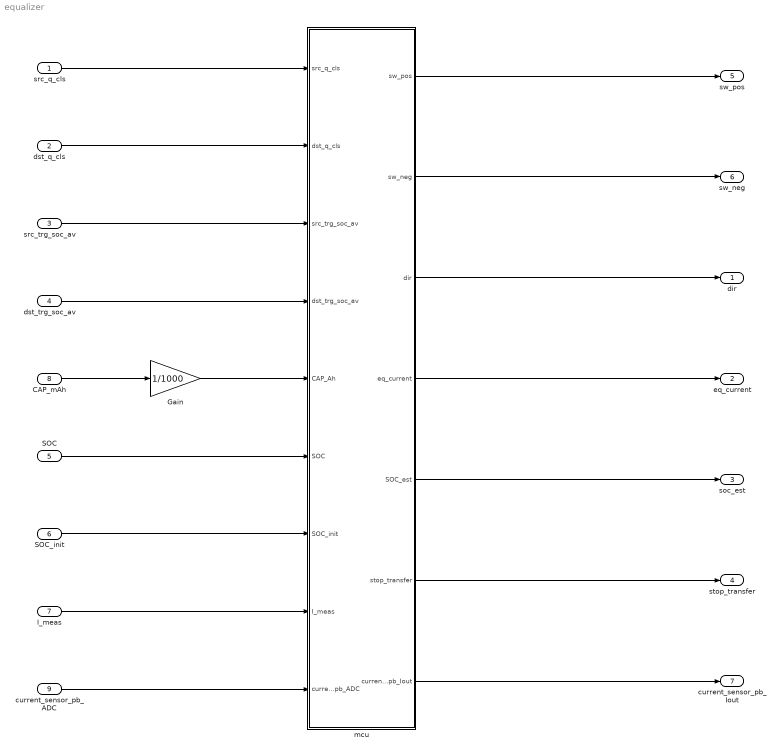
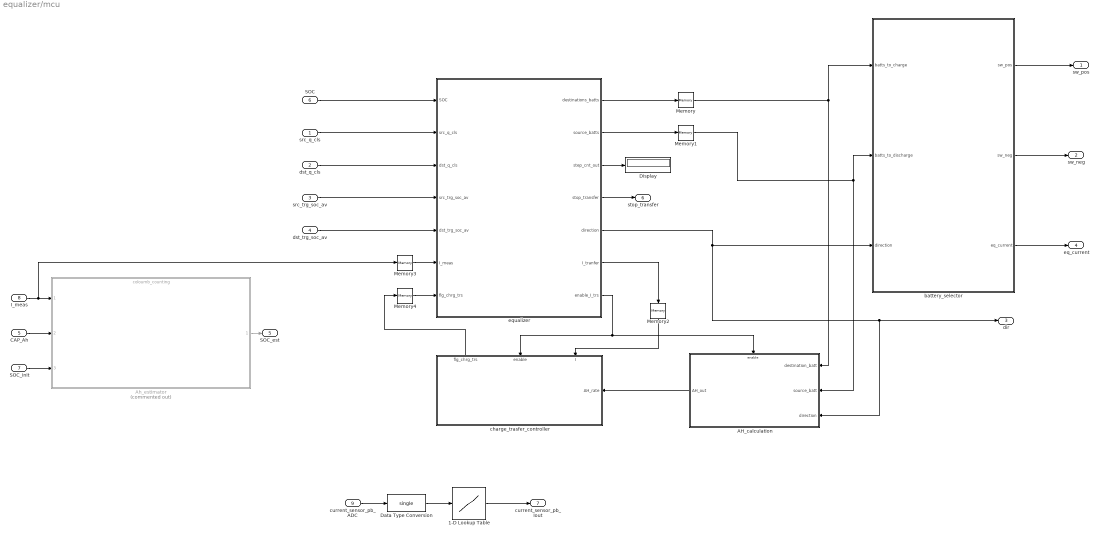
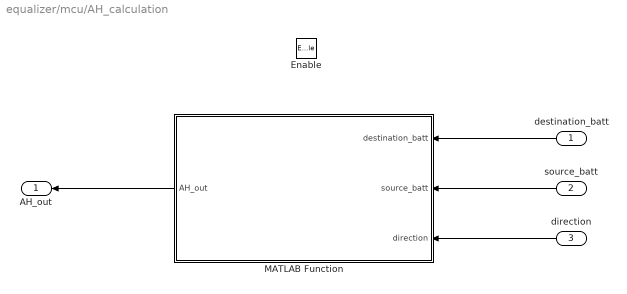
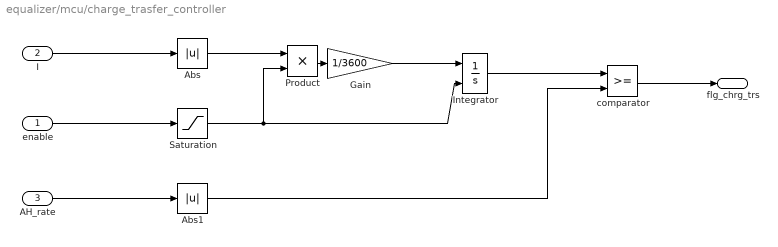
== matlab function equalizer/mcu/battery_selector ==
function [sw_pos, sw_neg, eq_current] = battery_selector(batts_to_charge, batts_to_discharge, direction)
    sw_pos = uint8(0);
    sw_neg = uint8(0);
    eq_current = 0;
    eq_current_tmp = 0;
% to prevent invalid switch selection
if ( batts_to_charge(1, 1) <= batts_to_charge(1, 2) && ...
     batts_to_discharge(1, 1) <= batts_to_discharge(1, 2))
    
    % charge the capacitor using batteries
    if(direction == 0)
        sw_pos = uint8(batts_to_discharge(1, 1));
        sw_neg = uint8(batts_to_discharge(1, 2));
        eq_current_tmp = 2;        
    % charge the battery using capacitor
    elseif(direction == 1)
        sw_pos = uint8(batts_to_charge(1, 1));
        sw_neg = uint8(batts_to_charge(1, 2));
        eq_current_tmp = 2;
    else
        sw_pos = uint8(0);
        sw_neg = uint8(0);
    end


    eq_current = eq_current_tmp;

end


end

== matlab function equalizer/mcu/equalizer ==
function [destinations_batts, source_batts, step_cnt_out, stop_transfer, direction, I_tranfer, enable_I_trs] = ...
    battery_selector ...
    (SOC, src_q_cls, dst_q_cls, src_trg_soc_av, dst_trg_soc_av, I_meas, flg_chrg_trs)


I_tranfer  = 0;
stop_transfer  = 0;
source_batts = [0 0];
destinations_batts = [0 0];
dst_trg_soc_av_tmp = dst_trg_soc_av;
src_trg_soc_av_tmp = src_trg_soc_av;

%dst_trg_soc_av_tmp(dst_trg_soc_av == 0) = Inf;
% src_trg_soc_av_tmp(src_trg_soc_av == 0) = Inf;
% the number of steps to equlalize the battery pack
step = length(src_q_cls);

persistent step_cnt;
persistent I_cells_source;
persistent I_cells_destination;
persistent dir;
persistent enable;



if isempty(step_cnt)
    step_cnt = 1;
    assert(1, 'Simulation terminated because x >= 10')

end

if isempty(I_cells_source)
    I_cells_source = 0;
end
if isempty(I_cells_destination)
    I_cells_destination = 0;
end
if isempty(dir)
    dir = int8(-1);
end
if isempty(enable)
    enable = 0;
end



soc = SOC';
if src_q_cls(1, :) > 0


    source_batts = src_q_cls(1, :);
    I_cells_source = I_meas(source_batts(1, 1));       % source cells current
    destinations_batts = dst_q_cls(1, :);
    I_cells_destination = I_meas(destinations_batts(1, 1));  % destication cells current



    if(dir == -1 && flg_chrg_trs == 0) % dischaege source if in the begining of charge transfering
        I_tranfer = I_cells_source;
        enable = 1; % start counting coulombs
        dir = int8(0); 
    end
    if(dir == 0)
        I_tranfer = I_cells_source;
    end

    if(dir == 0 && flg_chrg_trs == 1 && enable == 1) % reset the flag
        enable = 0;
    end

    if(dir == 0 && flg_chrg_trs == 0 && enable == 0) % charge the destination if the prevoius charge transfer terminated
        I_tranfer = I_cells_destination;
        enable = 1;
        dir = int8(1);
    end
    if(dir == 1)
        I_tranfer = I_cells_destination;
    end

    if(dir == 1 && flg_chrg_trs == 1 && enable == 1) % reset the flag
        enable = 0;
    end

    if(dir == 1 && flg_chrg_trs == 0 && enable == 0) % charge transfer terminated
        dir = int8(-1);
    end
    
    sm = mean(soc(src_q_cls(1, 1):src_q_cls(1, 2)));
    dm = mean(soc(dst_q_cls(1, 1):dst_q_cls(1, 2)));
    if(sm <= src_trg_soc_av_tmp(1) || dm >= dst_trg_soc_av_tmp(1)) && dir == -1
        stop_transfer = 1;
    end
else
    direction = int8(0);
    I_cells_source = 0;
    I_cells_destination = 0;
    dir = int8(-1);
    stop_transfer  = 1;
    enable = 0;
end
direction = int8(dir);
enable_I_trs = enable;


step_cnt_out = step_cnt;

end

== matlab function equalizer/mcu/AH_calculation/MATLAB Function ==
function AH_out = fcn(destination_batt, source_batt, direction)
AH_base = 0.001;
AH_coeff = 1;
AH_out = 0;

source_batt_number = source_batt(1, 2) - source_batt(1, 1) + 1;
destination_batt_number = destination_batt(1, 2) - destination_batt(1, 1) + 1;

if (source_batt_number > destination_batt_number)
    if direction == 0
        AH_coeff = destination_batt_number / source_batt_number;
    else
        AH_coeff = 1; 
    end
elseif source_batt_number < destination_batt_number
     if direction == 1
        AH_coeff = source_batt_number / destination_batt_number;
    else
        AH_coeff = 1; 
    end
end

AH_out = AH_base * AH_coeff;

/*
 * File: equalizer.c
 *
 * Code generated for Simulink model 'equalizer'.
 *
 * Model version                  : 4.51
 * Simulink Coder version         : 23.2 (R2023b) 01-Aug-2023
 * C/C++ source code generated on : Thu Jul  4 12:09:58 2024
 *
 * Target selection: ert.tlc
 * Embedded hardware selection: STMicroelectronics->ST10/Super10
 * Code generation objectives: Unspecified
 * Validation result: Not run
 */

#include "equalizer.h"
#include "equalizer_private.h"
#include <math.h>
#include "rtwtypes.h"
#include "zero_crossing_types.h"

/* Block signals (default storage) */
B_equalizer_T equalizer_B;

/* Continuous states */
X_equalizer_T equalizer_X;

/* Disabled State Vector */
XDis_equalizer_T equalizer_XDis;

/* Block states (default storage) */
DW_equalizer_T equalizer_DW;

/* Previous zero-crossings (trigger) states */
PrevZCX_equalizer_T equalizer_PrevZCX;

/* External inputs (root inport signals with default storage) */
ExtU_equalizer_T equalizer_U;

/* External outputs (root outports fed by signals with default storage) */
ExtY_equalizer_T equalizer_Y;

/* Real-time model */
static RT_MODEL_equalizer_T equalizer_M_;
RT_MODEL_equalizer_T *const equalizer_M = &equalizer_M_;
real32_T look1_iflf_binlxpw(real32_T u0, const real32_T bp0[], const real32_T
    table[], uint32_T maxIndex)
{
    real32_T frac;
    real32_T yL_0d0;
    uint32_T iLeft;

    /* Column-major Lookup 1-D
       Search method: 'binary'
       Use previous index: 'off'
       Interpolation method: 'Linear point-slope'
       Extrapolation method: 'Linear'
       Use last breakpoint for index at or above upper limit: 'off'
       Remove protection against out-of-range input in generated code: 'off'
     */
    /* Prelookup - Index and Fraction
       Index Search method: 'binary'
       Extrapolation method: 'Linear'
       Use previous index: 'off'
       Use last breakpoint for index at or above upper limit: 'off'
       Remove protection against out-of-range input in generated code: 'off'
     */
    if (u0 <= bp0[0UL])
    {
        iLeft = 0UL;
        frac = (u0 - bp0[0UL]) / (bp0[1UL] - bp0[0UL]);
    }
    else if (u0 < bp0[maxIndex])
    {
        uint32_T bpIdx;
        uint32_T iRght;

        /* Binary Search */
        bpIdx = maxIndex >> 1UL;
        iLeft = 0UL;
        iRght = maxIndex;
        while (iRght - iLeft > 1UL)
        {
            if (u0 < bp0[bpIdx])
            {
                iRght = bpIdx;
            }
            else
            {
                iLeft = bpIdx;
            }

            bpIdx = (iRght + iLeft) >> 1UL;
        }

        frac = (u0 - bp0[iLeft]) / (bp0[iLeft + 1UL] - bp0[iLeft]);
    }
    else
    {
        iLeft = maxIndex - 1UL;
        frac = (u0 - bp0[maxIndex - 1UL]) / (bp0[maxIndex] - bp0[maxIndex - 1UL]);
    }

    /* Column-major Interpolation 1-D
       Interpolation method: 'Linear point-slope'
       Use last breakpoint for index at or above upper limit: 'off'
       Overflow mode: 'portable wrapping'
     */
    yL_0d0 = table[iLeft];
    return (table[iLeft + 1UL] - yL_0d0) * frac + yL_0d0;
}

/*
 * This function updates continuous states using the ODE3 fixed-step
 * solver algorithm
 */
static void rt_ertODEUpdateContinuousStates(RTWSolverInfo *si )
{
    /* Solver Matrices */
    static const real_T rt_ODE3_A[3] =
    {
        1.0/2.0, 3.0/4.0, 1.0
    };

    static const real_T rt_ODE3_B[3][3] =
    {
        {
            1.0/2.0, 0.0, 0.0
        },

        {
            0.0, 3.0/4.0, 0.0
        },

        {
            2.0/9.0, 1.0/3.0, 4.0/9.0
        }
    };

    time_T t = rtsiGetT(si);
    time_T tnew = rtsiGetSolverStopTime(si);
    time_T h = rtsiGetStepSize(si);
    real_T *x = rtsiGetContStates(si);
    ODE3_IntgData *id = (ODE3_IntgData *)rtsiGetSolverData(si);
    real_T *y = id->y;
    real_T *f0 = id->f[0];
    real_T *f1 = id->f[1];
    real_T *f2 = id->f[2];
    real_T hB[3];
    int_T i;
    int_T nXc = 1;
    rtsiSetSimTimeStep(si,MINOR_TIME_STEP);

    /* Save the state values at time t in y, we'll use x as ynew. */
    (void) memcpy(y, x,
                  (uint_T)nXc*sizeof(real_T));

    /* Assumes that rtsiSetT and ModelOutputs are up-to-date */
    /* f0 = f(t,y) */
    rtsiSetdX(si, f0);
    equalizer_derivatives();

    /* f(:,2) = feval(odefile, t + hA(1), y + f*hB(:,1), args(:)(*)); */
    hB[0] = h * rt_ODE3_B[0][0];
    for (i = 0; i < nXc; i++)
    {
        x[i] = y[i] + (f0[i]*hB[0]);
    }

    rtsiSetT(si, t + h*rt_ODE3_A[0]);
    rtsiSetdX(si, f1);
    equalizer_step();
    equalizer_derivatives();

    /* f(:,3) = feval(odefile, t + hA(2), y + f*hB(:,2), args(:)(*)); */
    for (i = 0; i <= 1; i++)
    {
        hB[i] = h * rt_ODE3_B[1][i];
    }

    for (i = 0; i < nXc; i++)
    {
        x[i] = y[i] + (f0[i]*hB[0] + f1[i]*hB[1]);
    }

    rtsiSetT(si, t + h*rt_ODE3_A[1]);
    rtsiSetdX(si, f2);
    equalizer_step();
    equalizer_derivatives();

    /* tnew = t + hA(3);
       ynew = y + f*hB(:,3); */
    for (i = 0; i <= 2; i++)
    {
        hB[i] = h * rt_ODE3_B[2][i];
    }

    for (i = 0; i < nXc; i++)
    {
        x[i] = y[i] + (f0[i]*hB[0] + f1[i]*hB[1] + f2[i]*hB[2]);
    }

    rtsiSetT(si, tnew);
    rtsiSetSimTimeStep(si,MAJOR_TIME_STEP);
}

real_T rt_roundd_snf(real_T u)
{
    real_T y;
    if (fabs(u) < 4.503599627370496E+15)
    {
        if (u >= 0.5)
        {
            y = floor(u + 0.5);
        }
        else if (u > -0.5)
        {
            y = u * 0.0;
        }
        else
        {
            y = ceil(u - 0.5);
        }
    }
    else
    {
        y = u;
    }

    return y;
}

/* Model step function */
void equalizer_step(void)
{
    if (rtmIsMajorTimeStep(equalizer_M))
    {
        /* set solver stop time */
        rtsiSetSolverStopTime(&equalizer_M->solverInfo,
                              ((equalizer_M->Timing.clockTick0+1)*
                               equalizer_M->Timing.stepSize0));
    }                                  /* end MajorTimeStep */

    /* Update absolute time of base rate at minor time step */
    if (rtmIsMinorTimeStep(equalizer_M))
    {
        equalizer_M->Timing.t[0] = rtsiGetT(&equalizer_M->solverInfo);
    }

    {
        real_T AH_coeff;
        real_T destination_batt_number;
        real_T source_batt_number;
        int16_T b_k;
        int16_T eq_current_tmp;
        int16_T i;
        int16_T vlen;
        uint8_T tmp;
        boolean_T exitg1;
        boolean_T y;
        ZCEventType zcEvent;
        if (rtmIsMajorTimeStep(equalizer_M))
        {
            for (i = 0; i < 9; i++)
            {
                /* Memory: '<S1>/Memory3' */
                equalizer_B.Memory3[i] = equalizer_DW.Memory3_PreviousInput[i];
            }

            /* Memory: '<S1>/Memory4' */
            equalizer_B.Memory4 = equalizer_DW.Memory4_PreviousInput;

            /* MATLAB Function: '<S1>/equalizer' */
            equalizer_B.I_tranfer = 0.0;

            /* Outport: '<Root>/stop_transfer' incorporates:
             *  MATLAB Function: '<S1>/equalizer'
             */
            equalizer_Y.stop_transfer = 0.0;

            /* MATLAB Function: '<S1>/equalizer' incorporates:
             *  Inport: '<Root>/SOC'
             *  Inport: '<Root>/dst_q_cls'
             *  Inport: '<Root>/src_q_cls'
             *  Inport: '<Root>/src_trg_soc_av'
             *  Memory: '<S1>/Memory3'
             */
            equalizer_B.source_batts[0] = 0.0;
            equalizer_B.destinations_batts[0] = 0.0;
            equalizer_B.source_batts[1] = 0.0;
            equalizer_B.destinations_batts[1] = 0.0;
            y = true;
            eq_current_tmp = 0;
            exitg1 = false;
            while ((!exitg1) && (eq_current_tmp < 2))
            {
                if (!(equalizer_U.src_q_cls[eq_current_tmp] > 0.0))
                {
                    y = false;
                    exitg1 = true;
                }
                else
                {
                    eq_current_tmp++;
                }
            }

            if (y)
            {
                equalizer_B.source_batts[0] = equalizer_U.src_q_cls[0];
                equalizer_B.destinations_batts[0] = equalizer_U.dst_q_cls[0];
                equalizer_B.source_batts[1] = equalizer_U.src_q_cls[1];
                equalizer_B.destinations_batts[1] = equalizer_U.dst_q_cls[1];
                y = (boolean_T)!(int16_T)equalizer_B.Memory4;
                if (((int16_T)equalizer_DW.dir == -1) && ((int16_T)y))
                {
                    equalizer_B.I_tranfer = equalizer_B.Memory3[(int16_T)
                        equalizer_U.src_q_cls[0] - 1];
                    equalizer_DW.enable = 1.0;
                    equalizer_DW.dir = (int8_T)0;
                }

                if ((int16_T)equalizer_DW.dir == 0)
                {
                    equalizer_B.I_tranfer = equalizer_B.Memory3[(int16_T)
                        equalizer_U.src_q_cls[0] - 1];
                }

                if (((int16_T)equalizer_DW.dir == 0) && ((int16_T)
                        equalizer_B.Memory4) && (equalizer_DW.enable == 1.0))
                {
                    equalizer_DW.enable = 0.0;
                }

                if (((int16_T)equalizer_DW.dir == 0) && ((int16_T)y) &&
                        (equalizer_DW.enable == 0.0))
                {
                    equalizer_B.I_tranfer = equalizer_B.Memory3[(int16_T)
                        equalizer_U.dst_q_cls[0] - 1];
                    equalizer_DW.enable = 1.0;
                    equalizer_DW.dir = (int8_T)1;
                }

                if ((int16_T)equalizer_DW.dir == 1)
                {
                    equalizer_B.I_tranfer = equalizer_B.Memory3[(int16_T)
                        equalizer_U.dst_q_cls[0] - 1];
                }

                if (((int16_T)equalizer_DW.dir == 1) && ((int16_T)
                        equalizer_B.Memory4) && (equalizer_DW.enable == 1.0))
                {
                    equalizer_DW.enable = 0.0;
                }

                if (((int16_T)equalizer_DW.dir == 1) && ((int16_T)y) &&
                        (equalizer_DW.enable == 0.0))
                {
                    equalizer_DW.dir = (int8_T)-1;
                }

                if (equalizer_U.src_q_cls[0] > equalizer_U.src_q_cls[1])
                {
                    eq_current_tmp = 0;
                    i = 0;
                }
                else
                {
                    eq_current_tmp = (int16_T)equalizer_U.src_q_cls[0] - 1;
                    i = (int16_T)equalizer_U.src_q_cls[1];
                }

                i -= eq_current_tmp;
                vlen = i;
                if (i == 0)
                {
                    AH_coeff = 0.0;
                }
                else
                {
                    AH_coeff = equalizer_U.SOC[eq_current_tmp];
                    for (b_k = 2; b_k <= vlen; b_k++)
                    {
                        AH_coeff += equalizer_U.SOC[(eq_current_tmp + b_k) - 1];
                    }
                }

                if (equalizer_U.dst_q_cls[0] > equalizer_U.dst_q_cls[1])
                {
                    vlen = 0;
                    b_k = 0;
                }
                else
                {
                    vlen = (int16_T)equalizer_U.dst_q_cls[0] - 1;
                    b_k = (int16_T)equalizer_U.dst_q_cls[1];
                }

                eq_current_tmp = b_k - vlen;
                if (eq_current_tmp == 0)
                {
                    source_batt_number = 0.0;
                }
                else
                {
                    source_batt_number = equalizer_U.SOC[vlen];
                    for (b_k = 2; b_k <= eq_current_tmp; b_k++)
                    {
                        source_batt_number += equalizer_U.SOC[(vlen + b_k) - 1];
                    }
                }

                if (((AH_coeff / (real_T)i <= equalizer_U.src_trg_soc_av) ||
                        (source_batt_number / (real_T)eq_current_tmp >=
                         equalizer_U.dst_trg_soc_av)) && ((int16_T)
                        equalizer_DW.dir == -1))
                {
                    /* Outport: '<Root>/stop_transfer' */
                    equalizer_Y.stop_transfer = 1.0;
                }
            }
            else
            {
                equalizer_DW.dir = (int8_T)-1;

                /* Outport: '<Root>/stop_transfer' */
                equalizer_Y.stop_transfer = 1.0;
                equalizer_DW.enable = 0.0;
            }

            /* Outport: '<Root>/dir' incorporates:
             *  MATLAB Function: '<S1>/equalizer'
             */
            equalizer_Y.dir = equalizer_DW.dir;

            /* MATLAB Function: '<S1>/equalizer' */
            equalizer_B.enable_I_trs = equalizer_DW.enable;
            equalizer_B.step_cnt_out = 1.0;

            /* Memory: '<S1>/Memory' */
            equalizer_B.Memory[0] = equalizer_DW.Memory_PreviousInput[0];

            /* Memory: '<S1>/Memory1' */
            equalizer_B.Memory1[0] = equalizer_DW.Memory1_PreviousInput[0];

            /* Memory: '<S1>/Memory' */
            equalizer_B.Memory[1] = equalizer_DW.Memory_PreviousInput[1];

            /* Memory: '<S1>/Memory1' */
            equalizer_B.Memory1[1] = equalizer_DW.Memory1_PreviousInput[1];

            /* Outport: '<Root>/sw_pos' incorporates:
             *  MATLAB Function: '<S1>/battery_selector'
             */
            equalizer_Y.sw_pos = (uint8_T)0U;

            /* Outport: '<Root>/sw_neg' incorporates:
             *  MATLAB Function: '<S1>/battery_selector'
             */
            equalizer_Y.sw_neg = (uint8_T)0U;

            /* Outport: '<Root>/eq_current' incorporates:
             *  MATLAB Function: '<S1>/battery_selector'
             */
            equalizer_Y.eq_current = 0.0;

            /* MATLAB Function: '<S1>/battery_selector' incorporates:
             *  Memory: '<S1>/Memory'
             *  Memory: '<S1>/Memory1'
             *  Outport: '<Root>/dir'
             */
            eq_current_tmp = 0;
            if ((equalizer_B.Memory[0] <= equalizer_B.Memory[1]) &&
                    (equalizer_B.Memory1[0] <= equalizer_B.Memory1[1]))
            {
                switch (equalizer_Y.dir)
                {
                  case 0:
                    AH_coeff = rt_roundd_snf(equalizer_B.Memory1[0]);
                    if (AH_coeff < 256.0)
                    {
                        if (AH_coeff >= 0.0)
                        {
                            tmp = (uint8_T)AH_coeff;
                        }
                        else
                        {
                            tmp = (uint8_T)0U;
                        }
                    }
                    else
                    {
                        tmp = MAX_uint8_T;
                    }

                    /* Outport: '<Root>/sw_pos' */
                    equalizer_Y.sw_pos = tmp;
                    AH_coeff = rt_roundd_snf(equalizer_B.Memory1[1]);
                    if (AH_coeff < 256.0)
                    {
                        if (AH_coeff >= 0.0)
                        {
                            tmp = (uint8_T)AH_coeff;
                        }
                        else
                        {
                            tmp = (uint8_T)0U;
                        }
                    }
                    else
                    {
                        tmp = MAX_uint8_T;
                    }

                    /* Outport: '<Root>/sw_neg' */
                    equalizer_Y.sw_neg = tmp;
                    eq_current_tmp = 2;
                    break;

                  case 1:
                    AH_coeff = rt_roundd_snf(equalizer_B.Memory[0]);
                    if (AH_coeff < 256.0)
                    {
                        if (AH_coeff >= 0.0)
                        {
                            tmp = (uint8_T)AH_coeff;
                        }
                        else
                        {
                            tmp = (uint8_T)0U;
                        }
                    }
                    else
                    {
                        tmp = MAX_uint8_T;
                    }

                    /* Outport: '<Root>/sw_pos' */
                    equalizer_Y.sw_pos = tmp;
                    AH_coeff = rt_roundd_snf(equalizer_B.Memory[1]);
                    if (AH_coeff < 256.0)
                    {
                        if (AH_coeff >= 0.0)
                        {
                            tmp = (uint8_T)AH_coeff;
                        }
                        else
                        {
                            tmp = (uint8_T)0U;
                        }
                    }
                    else
                    {
                        tmp = MAX_uint8_T;
                    }

                    /* Outport: '<Root>/sw_neg' */
                    equalizer_Y.sw_neg = tmp;
                    eq_current_tmp = 2;
                    break;
                }

                /* Outport: '<Root>/eq_current' incorporates:
                 *  Outport: '<Root>/dir'
                 */
                equalizer_Y.eq_current = (real_T)eq_current_tmp;
            }

            /* DataTypeConversion: '<S1>/Data Type Conversion' incorporates:
             *  Inport: '<Root>/current_sensor_pb_ADC'
             */
            equalizer_B.DataTypeConversion = (real32_T)
                equalizer_U.current_sensor_pb_ADC;

            /* Outport: '<Root>/current_sensor_pb_Iout' incorporates:
             *  DataTypeConversion: '<S1>/Data Type Conversion'
             *  Lookup_n-D: '<S1>/1-D Lookup Table'
             */
            equalizer_Y.current_sensor_pb_Iout = look1_iflf_binlxpw
                (equalizer_B.DataTypeConversion,
                 equalizer_ConstP.uDLookupTable_bp01Data,
                 equalizer_ConstP.uDLookupTable_tableData, 2UL);

            /* Outputs for Enabled SubSystem: '<S1>/AH_calculation' incorporates:
             *  EnablePort: '<S2>/Enable'
             */
            if (equalizer_B.enable_I_trs > 0.0)
            {
                /* MATLAB Function: '<S2>/MATLAB Function' incorporates:
                 *  Memory: '<S1>/Memory'
                 *  Memory: '<S1>/Memory1'
                 *  Outport: '<Root>/dir'
                 */
                AH_coeff = 1.0;
                source_batt_number = (equalizer_B.Memory1[1] -
                                      equalizer_B.Memory1[0]) + 1.0;
                destination_batt_number = (equalizer_B.Memory[1] -
                    equalizer_B.Memory[0]) + 1.0;
                if (source_batt_number > destination_batt_number)
                {
                    if ((int16_T)equalizer_Y.dir == 0)
                    {
                        AH_coeff = destination_batt_number / source_batt_number;
                    }
                }
                else if ((source_batt_number < destination_batt_number) &&
                         ((int16_T)equalizer_Y.dir == 1))
                {
                    AH_coeff = source_batt_number / destination_batt_number;
                }

                equalizer_B.AH_out = 0.001 * AH_coeff;

                /* End of MATLAB Function: '<S2>/MATLAB Function' */
            }

            /* End of Outputs for SubSystem: '<S1>/AH_calculation' */

            /* Memory: '<S1>/Memory2' */
            equalizer_B.Memory2 = equalizer_DW.Memory2_PreviousInput;

            /* Abs: '<S4>/Abs' */
            equalizer_B.Abs = fabs(equalizer_B.Memory2);

            /* Abs: '<S4>/Abs1' */
            equalizer_B.Abs1 = fabs(equalizer_B.AH_out);

            /* Saturate: '<S4>/Saturation' */
            AH_coeff = equalizer_B.enable_I_trs;
            if (AH_coeff > 1.0)
            {
                /* Saturate: '<S4>/Saturation' */
                equalizer_B.Saturation = 1.0;
            }
            else if (AH_coeff < 0.0)
            {
                /* Saturate: '<S4>/Saturation' */
                equalizer_B.Saturation = 0.0;
            }
            else
            {
                /* Saturate: '<S4>/Saturation' */
                equalizer_B.Saturation = AH_coeff;
            }

            /* End of Saturate: '<S4>/Saturation' */

            /* Product: '<S4>/Product' */
            equalizer_B.Product = equalizer_B.Abs * equalizer_B.Saturation;

            /* Gain: '<S4>/Gain' */
            equalizer_B.Gain = 0.00027777777777777778 * equalizer_B.Product;
        }

        /* Integrator: '<S4>/Integrator' */
        if (rtsiIsModeUpdateTimeStep(&equalizer_M->solverInfo))
        {
            zcEvent = rt_ZCFcn(ANY_ZERO_CROSSING,
                               &equalizer_PrevZCX.Integrator_Reset_ZCE,
                               (equalizer_B.Saturation));
            y = (boolean_T)(zcEvent != NO_ZCEVENT);

            /* evaluate zero-crossings */
            if (y)
            {
                equalizer_X.Integrator_CSTATE = 0.0;
            }
        }

        /* Integrator: '<S4>/Integrator' */
        equalizer_B.Integrator = equalizer_X.Integrator_CSTATE;

        /* RelationalOperator: '<S4>/comparator' */
        equalizer_B.comparator = (boolean_T)(equalizer_B.Integrator >=
            equalizer_B.Abs1);
    }

    if (rtmIsMajorTimeStep(equalizer_M))
    {
        int16_T i;
        if (rtmIsMajorTimeStep(equalizer_M))
        {
            /* Update for Memory: '<S1>/Memory3' incorporates:
             *  Inport: '<Root>/I_meas'
             */
            for (i = 0; i < 9; i++)
            {
                equalizer_DW.Memory3_PreviousInput[i] = equalizer_U.I_meas[i];
            }

            /* End of Update for Memory: '<S1>/Memory3' */

            /* Update for Memory: '<S1>/Memory4' */
            equalizer_DW.Memory4_PreviousInput = equalizer_B.comparator;

            /* Update for Memory: '<S1>/Memory' */
            equalizer_DW.Memory_PreviousInput[0] =
                equalizer_B.destinations_batts[0];

            /* Update for Memory: '<S1>/Memory1' */
            equalizer_DW.Memory1_PreviousInput[0] = equalizer_B.source_batts[0];

            /* Update for Memory: '<S1>/Memory' */
            equalizer_DW.Memory_PreviousInput[1] =
                equalizer_B.destinations_batts[1];

            /* Update for Memory: '<S1>/Memory1' */
            equalizer_DW.Memory1_PreviousInput[1] = equalizer_B.source_batts[1];

            /* Update for Memory: '<S1>/Memory2' */
            equalizer_DW.Memory2_PreviousInput = equalizer_B.I_tranfer;
        }
    }                                  /* end MajorTimeStep */

    if (rtmIsMajorTimeStep(equalizer_M))
    {
        rt_ertODEUpdateContinuousStates(&equalizer_M->solverInfo);

        /* Update absolute time for base rate */
        /* The "clockTick0" counts the number of times the code of this task has
         * been executed. The absolute time is the multiplication of "clockTick0"
         * and "Timing.stepSize0". Size of "clockTick0" ensures timer will not
         * overflow during the application lifespan selected.
         */
        ++equalizer_M->Timing.clockTick0;
        equalizer_M->Timing.t[0] = rtsiGetSolverStopTime
            (&equalizer_M->solverInfo);

        {
            /* Update absolute timer for sample time: [0.001s, 0.0s] */
            /* The "clockTick1" counts the number of times the code of this task has
             * been executed. The resolution of this integer timer is 0.001, which is the step size
             * of the task. Size of "clockTick1" ensures timer will not overflow during the
             * application lifespan selected.
             */
            equalizer_M->Timing.clockTick1++;
        }
    }                                  /* end MajorTimeStep */
}
